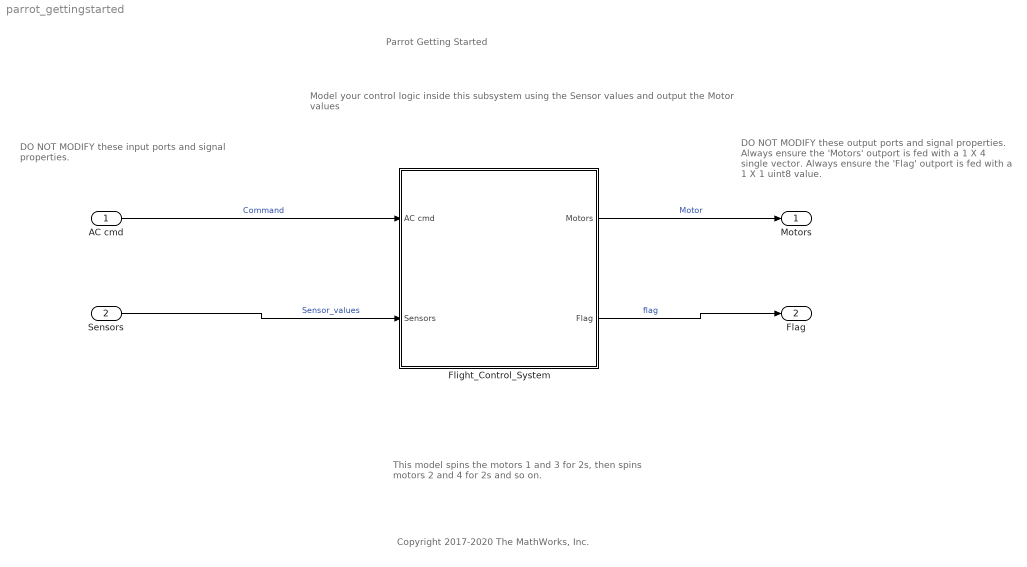
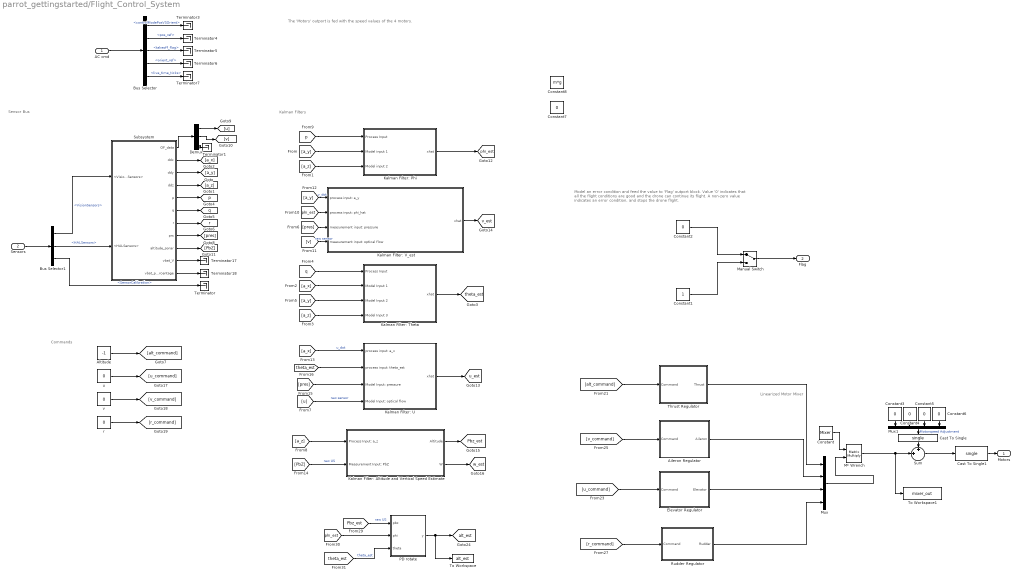
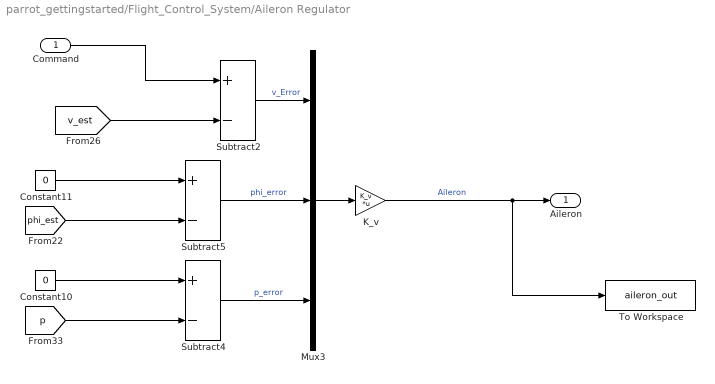
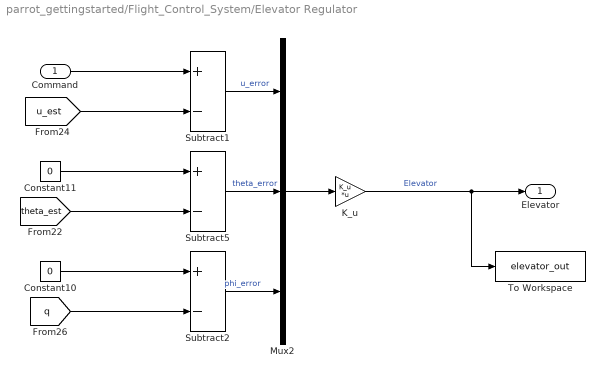
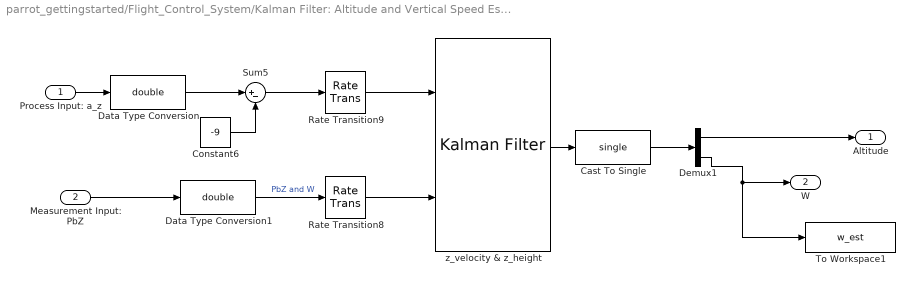
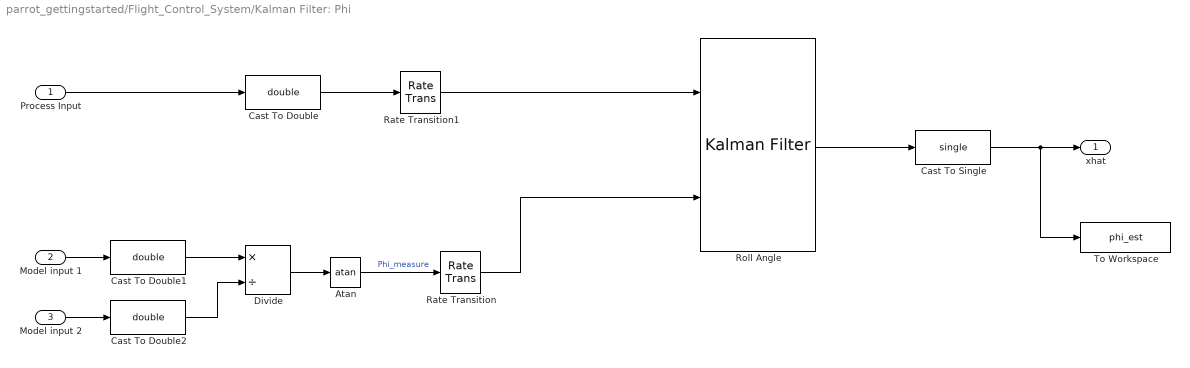
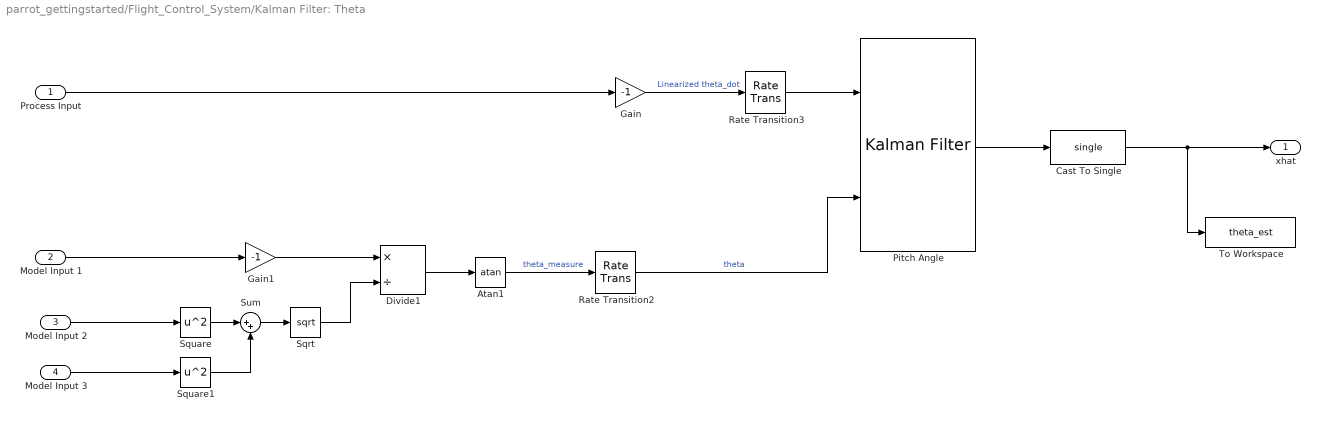
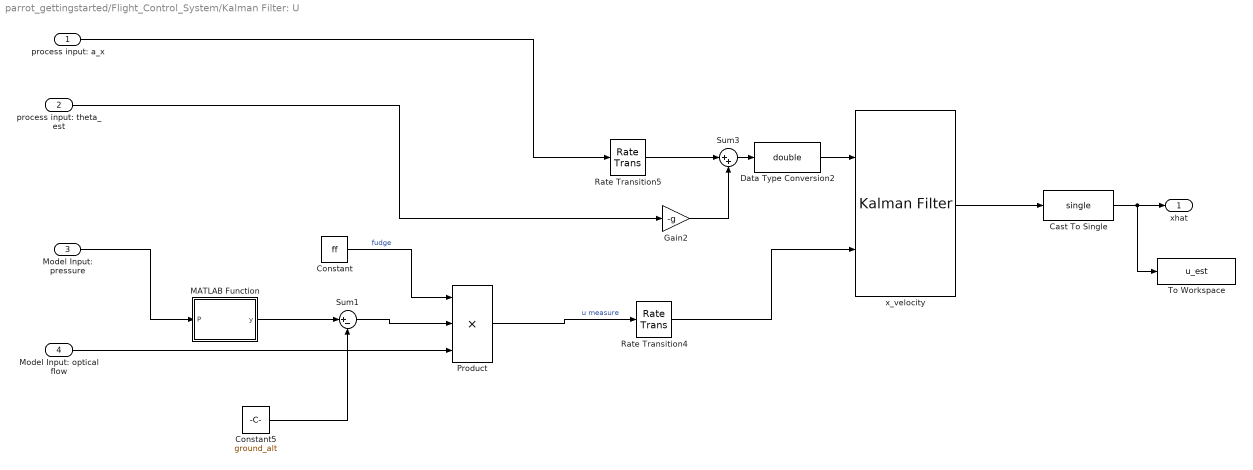
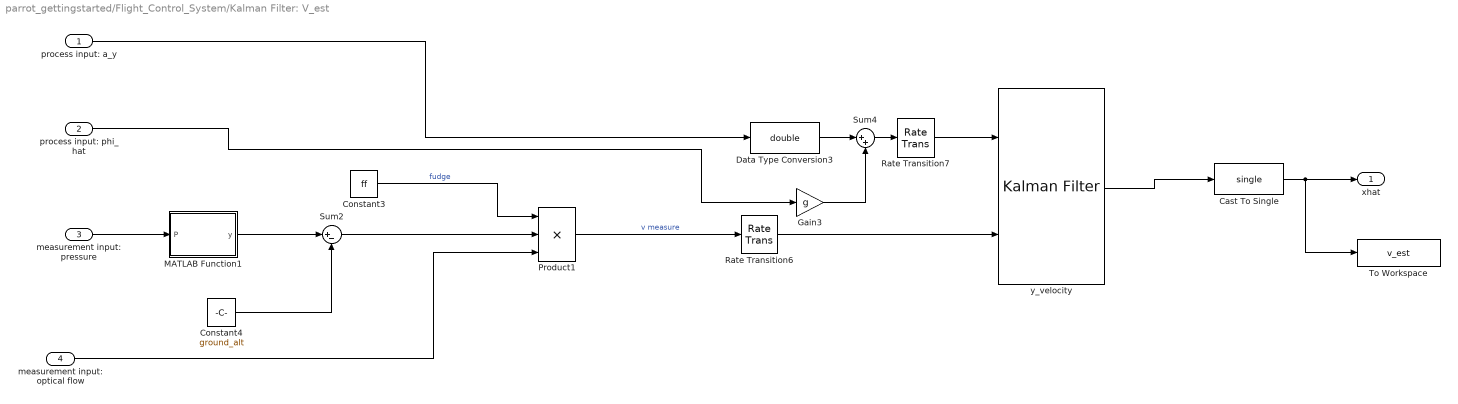
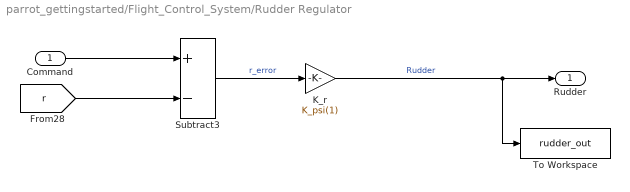
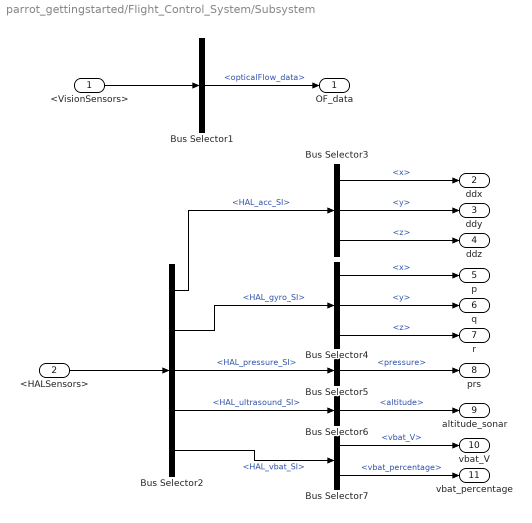
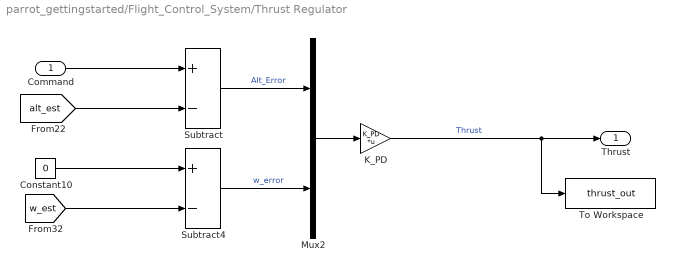
== matlab function parrot_gettingstarted/Flight_Control_System/Kalman Filter: U/MATLAB Function ==
function y = z_pres(P)
g = 9.8; % acceleration due to gravity m/s^2
M = 0.0289644; % molar mass of air in kg/mol
R = 8.31432; % universal gas constant Nm/mol/k
p0 = 101325; % Pa standard pressure

T =288.15;  % Assumed temperature in kelvin
K =-g*M/R/T;
z_hypsometric = 1/K*log(P/p0);
y = z_hypsometric;

== matlab function parrot_gettingstarted/Flight_Control_System/PD rotate ==
function y = rotate_BE(pbz, phi, theta)
roll_BE = [1 0 0; 0 cos(phi) sin(phi); 0 -sin(phi) cos(phi)]';
pitch_BE = [cos(theta) 0 -sin(theta); 0 1 0; sin(theta) 0 cos(theta);]';
%yaw_BE = simplify(inv([cos(psi) sin(psi) 0; -sin(psi) cos(psi) 0; 0 0 1;]));
rotater = roll_BE*pitch_BE*pbz;
y = rotater(3);

== matlab function parrot_gettingstarted/Flight_Control_System/Kalman Filter: V_est/MATLAB Function1 ==
function y = z_pres(P)
g = 9.8; % acceleration due to gravity m/s^2
M = 0.0289644; % molar mass of air in kg/mol
R = 8.31432; % universal gas constant Nm/mol/k
p0 = 101325; % Pa standard pressure

T =288.15;  % Assumed temperature in kelvin
K =-g*M/R/T;
z_hypsometric = 1/K*log(P/p0);
y = z_hypsometric;

/*
 * parrot_gettingstarted.c
 *
 * Academic License - for use in teaching, academic research, and meeting
 * course requirements at degree granting institutions only.  Not for
 * government, commercial, or other organizational use.
 *
 * Code generation for model "parrot_gettingstarted".
 *
 * Model version              : 4.0
 * Simulink Coder version : 9.7 (R2022a) 13-Nov-2021
 * C source code generated on : Tue May  3 11:22:44 2022
 *
 * Target selection: ert.tlc
 * Note: GRT includes extra infrastructure and instrumentation for prototyping
 * Embedded hardware selection: ARM Compatible->ARM 9
 * Code generation objectives: Unspecified
 * Validation result: Not run
 */

#include "parrot_gettingstarted.h"
#include "rtwtypes.h"
#include "parrot_gettingstarted_private.h"
#include <math.h>
#include "parrot_gettingstarted_types.h"
#include <string.h>
#include "rt_nonfinite.h"

/* Exported block signals */
CommandBus cmd_inport;                 /* '<Root>/AC cmd' */
SensorsBus sensor_inport;              /* '<Root>/Sensors' */
real32_T motors_outport[4];            /* '<S1>/Cast To Single1' */
uint8_T flag_outport;                  /* '<S1>/Manual Switch' */

/* Block signals (default storage) */
B_parrot_gettingstarted_T parrot_gettingstarted_B;

/* Block states (default storage) */
DW_parrot_gettingstarted_T parrot_gettingstarted_DW;

/* External outputs (root outports fed by signals with default storage) */
ExtY_parrot_gettingstarted_T parrot_gettingstarted_Y;

/* Real-time model */
static RT_MODEL_parrot_gettingstarte_T parrot_gettingstarted_M_;
RT_MODEL_parrot_gettingstarte_T *const parrot_gettingstarted_M =
  &parrot_gettingstarted_M_;

/*
 * System initialize for enable system:
 *    '<S89>/MeasurementUpdate'
 *    '<S200>/MeasurementUpdate'
 *    '<S256>/MeasurementUpdate'
 */
void parrot_g_MeasurementUpdate_Init(B_MeasurementUpdate_parrot_ge_T *localB,
  P_MeasurementUpdate_parrot_ge_T *localP)
{
  /* SystemInitialize for Product: '<S120>/Product3' incorporates:
   *  Outport: '<S120>/L*(y[k]-yhat[k|k-1])'
   */
  localB->Product3 = localP->Lykyhatkk1_Y0;
}

/*
 * Disable for enable system:
 *    '<S89>/MeasurementUpdate'
 *    '<S200>/MeasurementUpdate'
 *    '<S256>/MeasurementUpdate'
 */
void parro_MeasurementUpdate_Disable(B_MeasurementUpdate_parrot_ge_T *localB,
  DW_MeasurementUpdate_parrot_g_T *localDW, P_MeasurementUpdate_parrot_ge_T
  *localP)
{
  /* Disable for Product: '<S120>/Product3' incorporates:
   *  Outport: '<S120>/L*(y[k]-yhat[k|k-1])'
   */
  localB->Product3 = localP->Lykyhatkk1_Y0;
  localDW->MeasurementUpdate_MODE = false;
}

/*
 * Start for enable system:
 *    '<S89>/MeasurementUpdate'
 *    '<S200>/MeasurementUpdate'
 *    '<S256>/MeasurementUpdate'
 */
void parrot__MeasurementUpdate_Start(DW_MeasurementUpdate_parrot_g_T *localDW)
{
  localDW->MeasurementUpdate_MODE = false;
}

/*
 * Output and update for enable system:
 *    '<S89>/MeasurementUpdate'
 *    '<S200>/MeasurementUpdate'
 *    '<S256>/MeasurementUpdate'
 */
void parrot_gettin_MeasurementUpdate(boolean_T rtu_Enable, real_T rtu_Lk, real_T
  rtu_yk, real_T rtu_Ck, real_T rtu_xhatkk1, real_T rtu_Dk, real_T rtu_uk,
  B_MeasurementUpdate_parrot_ge_T *localB, DW_MeasurementUpdate_parrot_g_T
  *localDW, P_MeasurementUpdate_parrot_ge_T *localP)
{
  /* Outputs for Enabled SubSystem: '<S89>/MeasurementUpdate' incorporates:
   *  EnablePort: '<S120>/Enable'
   */
  if (rtu_Enable) {
    localDW->MeasurementUpdate_MODE = true;

    /* Product: '<S120>/Product3' incorporates:
     *  Product: '<S120>/C[k]*xhat[k|k-1]'
     *  Product: '<S120>/D[k]*u[k]'
     *  Sum: '<S120>/Add1'
     *  Sum: '<S120>/Sum'
     */
    localB->Product3 = (rtu_yk - (rtu_Ck * rtu_xhatkk1 + rtu_Dk * rtu_uk)) *
      rtu_Lk;
  } else if (localDW->MeasurementUpdate_MODE) {
    parro_MeasurementUpdate_Disable(localB, localDW, localP);
  }

  /* End of Outputs for SubSystem: '<S89>/MeasurementUpdate' */
}

/*
 * System initialize for enable system:
 *    '<S96>/Enabled Subsystem'
 *    '<S207>/Enabled Subsystem'
 *    '<S263>/Enabled Subsystem'
 */
void parrot_ge_EnabledSubsystem_Init(B_EnabledSubsystem_parrot_get_T *localB,
  P_EnabledSubsystem_parrot_get_T *localP)
{
  /* SystemInitialize for Product: '<S122>/Product2' incorporates:
   *  Outport: '<S122>/deltax'
   */
  localB->Product2 = localP->deltax_Y0;
}

/*
 * Disable for enable system:
 *    '<S96>/Enabled Subsystem'
 *    '<S207>/Enabled Subsystem'
 *    '<S263>/Enabled Subsystem'
 */
void parrot_EnabledSubsystem_Disable(B_EnabledSubsystem_parrot_get_T *localB,
  DW_EnabledSubsystem_parrot_ge_T *localDW, P_EnabledSubsystem_parrot_get_T
  *localP)
{
  /* Disable for Product: '<S122>/Product2' incorporates:
   *  Outport: '<S122>/deltax'
   */
  localB->Product2 = localP->deltax_Y0;
  localDW->EnabledSubsystem_MODE = false;
}

/*
 * Start for enable system:
 *    '<S96>/Enabled Subsystem'
 *    '<S207>/Enabled Subsystem'
 *    '<S263>/Enabled Subsystem'
 */
void parrot_g_EnabledSubsystem_Start(DW_EnabledSubsystem_parrot_ge_T *localDW)
{
  localDW->EnabledSubsystem_MODE = false;
}

/*
 * Output and update for enable system:
 *    '<S96>/Enabled Subsystem'
 *    '<S207>/Enabled Subsystem'
 *    '<S263>/Enabled Subsystem'
 */
void parrot_getting_EnabledSubsystem(boolean_T rtu_Enable, real_T rtu_Mk, real_T
  rtu_Ck, real_T rtu_yk, real_T rtu_xhatkk1, B_EnabledSubsystem_parrot_get_T
  *localB, DW_EnabledSubsystem_parrot_ge_T *localDW,
  P_EnabledSubsystem_parrot_get_T *localP)
{
  /* Outputs for Enabled SubSystem: '<S96>/Enabled Subsystem' incorporates:
   *  EnablePort: '<S122>/Enable'
   */
  if (rtu_Enable) {
    localDW->EnabledSubsystem_MODE = true;

    /* Product: '<S122>/Product2' incorporates:
     *  Product: '<S122>/Product'
     *  Sum: '<S122>/Add1'
     */
    localB->Product2 = (rtu_yk - rtu_Ck * rtu_xhatkk1) * rtu_Mk;
  } else if (localDW->EnabledSubsystem_MODE) {
    parrot_EnabledSubsystem_Disable(localB, localDW, localP);
  }

  /* End of Outputs for SubSystem: '<S96>/Enabled Subsystem' */
}

/*
 * Output and update for atomic system:
 *    '<S7>/MATLAB Function'
 *    '<S8>/MATLAB Function1'
 */
void parrot_gettingst_MATLABFunction(real32_T rtu_P,
  B_MATLABFunction_parrot_getti_T *localB)
{
  /* MATLAB Function 'Flight_Control_System/Kalman Filter: U/MATLAB Function': '<S178>:1' */
  /* '<S178>:1:9' */
  localB->y = (real32_T)log(rtu_P / 101325.0F) * -8440.23926F;

  /* '<S178>:1:10' */
}

/* Model step function */
void parrot_gettingstarted_step(void)
{
  real_T rtb_Sum4;
  real_T rtb_r_error;
  int32_T aoffset;
  int32_T coffset;
  int32_T i;
  int32_T j;
  real32_T rtb_Add_b;
  real32_T rtb_CastToSingle_e;
  real32_T rtb_CastToSingle_k;
  real32_T rtb_CastToSingle_lx;
  real32_T rtb_Linearizedtheta_dot;
  real32_T rtb_theta_measure;
  real32_T rtb_y;

  /* Product: '<S1>/M* Wrench' incorporates:
   *  Constant: '<S1>/Constant'
   *  Constant: '<S1>/Constant7'
   *  Constant: '<S1>/Constant8'
   */
  for (j = 0; j < 4; j++) {
    parrot_gettingstarted_B.TmpSignalConversionAtToWork[j] =
      ((parrot_gettingstarted_P.Mixer[j + 4] *
        parrot_gettingstarted_P.Constant7_Value +
        parrot_gettingstarted_P.Mixer[j] *
        parrot_gettingstarted_P.Constant8_Value) +
       parrot_gettingstarted_P.Mixer[j + 8] *
       parrot_gettingstarted_P.Constant7_Value) +
      parrot_gettingstarted_P.Mixer[j + 12] *
      parrot_gettingstarted_P.Constant7_Value;
  }

  /* End of Product: '<S1>/M* Wrench' */

  /* DataTypeConversion: '<S1>/Cast To Single1' incorporates:
   *  Constant: '<S1>/Constant3'
   *  Constant: '<S1>/Constant4'
   *  Constant: '<S1>/Constant5'
   *  Constant: '<S1>/Constant6'
   *  DataTypeConversion: '<S1>/Cast To Single'
   *  Sum: '<S1>/Sum'
   */
  motors_outport[0] = (real32_T)((real32_T)
    parrot_gettingstarted_P.Constant3_Value +
    parrot_gettingstarted_B.TmpSignalConversionAtToWork[0]);
  motors_outport[1] = (real32_T)((real32_T)
    parrot_gettingstarted_P.Constant4_Value +
    parrot_gettingstarted_B.TmpSignalConversionAtToWork[1]);
  motors_outport[2] = (real32_T)((real32_T)
    parrot_gettingstarted_P.Constant5_Value +
    parrot_gettingstarted_B.TmpSignalConversionAtToWork[2]);
  motors_outport[3] = (real32_T)((real32_T)
    parrot_gettingstarted_P.Constant6_Value +
    parrot_gettingstarted_B.TmpSignalConversionAtToWork[3]);

  /* Outport: '<Root>/Motors' incorporates:
   *  DataTypeConversion: '<S1>/Cast To Single1'
   */
  parrot_gettingstarted_Y.Motors[0] = motors_outport[0];
  parrot_gettingstarted_Y.Motors[1] = motors_outport[1];
  parrot_gettingstarted_Y.Motors[2] = motors_outport[2];
  parrot_gettingstarted_Y.Motors[3] = motors_outport[3];

  /* ManualSwitch: '<S1>/Manual Switch' */
  if (parrot_gettingstarted_P.ManualSwitch_CurrentSetting == 1) {
    /* ManualSwitch: '<S1>/Manual Switch' incorporates:
     *  Constant: '<S1>/Constant2'
     */
    flag_outport = parrot_gettingstarted_P.Constant2_Value;
  } else {
    /* ManualSwitch: '<S1>/Manual Switch' incorporates:
     *  Constant: '<S1>/Constant1'
     */
    flag_outport = parrot_gettingstarted_P.Constant1_Value;
  }

  /* End of ManualSwitch: '<S1>/Manual Switch' */

  /* Outport: '<Root>/Flag' */
  parrot_gettingstarted_Y.Flag = flag_outport;

  /* ToWorkspace: '<S1>/To Workspace1' */
  {
    double locTime = parrot_gettingstarted_M->Timing.taskTime0
      ;
    rt_UpdateStructLogVar((StructLogVar *)
                          parrot_gettingstarted_DW.ToWorkspace1_PWORK.LoggedData,
                          &locTime,
                          &parrot_gettingstarted_B.TmpSignalConversionAtToWork[0]);
  }

  /* Delay: '<S13>/MemoryX' incorporates:
   *  Constant: '<S13>/X0'
   */
  if (parrot_gettingstarted_DW.icLoad) {
    parrot_gettingstarted_DW.MemoryX_DSTATE[0] =
      parrot_gettingstarted_P.X0_Value[0];
    parrot_gettingstarted_DW.MemoryX_DSTATE[1] =
      parrot_gettingstarted_P.X0_Value[1];
  }

  /* Outputs for Enabled SubSystem: '<S41>/Enabled Subsystem' incorporates:
   *  EnablePort: '<S67>/Enable'
   */
  /* Constant: '<S13>/Enable' */
  if (parrot_gettingstarted_P.Enable_Value) {
    parrot_gettingstarted_DW.EnabledSubsystem_MODE_d = true;

    /* Sum: '<S67>/Add1' incorporates:
     *  Constant: '<S13>/C'
     *  DataTypeConversion: '<S4>/Data Type Conversion1'
     *  Delay: '<S13>/MemoryX'
     *  Inport: '<Root>/Sensors'
     *  Product: '<S67>/Product'
     */
    rtb_r_error = sensor_inport.HALSensors.HAL_ultrasound_SI.altitude -
      (parrot_gettingstarted_P.C_Value[0] *
       parrot_gettingstarted_DW.MemoryX_DSTATE[0] +
       parrot_gettingstarted_P.C_Value[1] *
       parrot_gettingstarted_DW.MemoryX_DSTATE[1]);

    /* Product: '<S67>/Product2' incorporates:
     *  Constant: '<S14>/KalmanGainM'
     *  DataTypeConversion: '<S58>/Conversion'
     */
    parrot_gettingstarted_B.Product2[0] =
      parrot_gettingstarted_P.KalmanGainM_Value_d[0] * rtb_r_error;
    parrot_gettingstarted_B.Product2[1] =
      parrot_gettingstarted_P.KalmanGainM_Value_d[1] * rtb_r_error;
  } else if (parrot_gettingstarted_DW.EnabledSubsystem_MODE_d) {
    /* Disable for Product: '<S67>/Product2' incorporates:
     *  Outport: '<S67>/deltax'
     */
    parrot_gettingstarted_B.Product2[0] = parrot_gettingstarted_P.deltax_Y0;
    parrot_gettingstarted_B.Product2[1] = parrot_gettingstarted_P.deltax_Y0;
    parrot_gettingstarted_DW.EnabledSubsystem_MODE_d = false;
  }

  /* End of Outputs for SubSystem: '<S41>/Enabled Subsystem' */

  /* DataTypeConversion: '<S4>/Cast To Single' incorporates:
   *  Delay: '<S13>/MemoryX'
   *  Sum: '<S41>/Add'
   */
  parrot_gettingstarted_B.CastToSingle[0] = (real32_T)
    (parrot_gettingstarted_B.Product2[0] +
     parrot_gettingstarted_DW.MemoryX_DSTATE[0]);
  parrot_gettingstarted_B.CastToSingle[1] = (real32_T)
    (parrot_gettingstarted_B.Product2[1] +
     parrot_gettingstarted_DW.MemoryX_DSTATE[1]);

  /* DataTypeConversion: '<S5>/Cast To Double2' incorporates:
   *  Inport: '<Root>/Sensors'
   */
  rtb_r_error = sensor_inport.HALSensors.HAL_acc_SI.z;

  /* Trigonometry: '<S5>/Atan' incorporates:
   *  DataTypeConversion: '<S5>/Cast To Double1'
   *  Inport: '<Root>/Sensors'
   *  Product: '<S5>/Divide'
   */
  parrot_gettingstarted_B.Phi_measure = atan
    (sensor_inport.HALSensors.HAL_acc_SI.y / rtb_r_error);

  /* Delay: '<S68>/MemoryX' incorporates:
   *  Constant: '<S68>/X0'
   */
  if (parrot_gettingstarted_DW.icLoad_g) {
    parrot_gettingstarted_DW.MemoryX_DSTATE_n =
      parrot_gettingstarted_P.X0_Value_l;
  }

  /* Outputs for Enabled SubSystem: '<S96>/Enabled Subsystem' */
  /* Constant: '<S68>/Enable' incorporates:
   *  Constant: '<S68>/C'
   *  Constant: '<S69>/KalmanGainM'
   *  Delay: '<S68>/MemoryX'
   */
  parrot_getting_EnabledSubsystem(parrot_gettingstarted_P.Enable_Value_k,
    parrot_gettingstarted_P.KalmanGainM_Value, parrot_gettingstarted_P.C_Value_m,
    parrot_gettingstarted_B.Phi_measure,
    parrot_gettingstarted_DW.MemoryX_DSTATE_n,
    &parrot_gettingstarted_B.EnabledSubsystem_o,
    &parrot_gettingstarted_DW.EnabledSubsystem_o,
    &parrot_gettingstarted_P.EnabledSubsystem_o);

  /* End of Outputs for SubSystem: '<S96>/Enabled Subsystem' */

  /* Sum: '<S96>/Add' incorporates:
   *  Delay: '<S68>/MemoryX'
   */
  rtb_r_error = parrot_gettingstarted_B.EnabledSubsystem_o.Product2 +
    parrot_gettingstarted_DW.MemoryX_DSTATE_n;

  /* DataTypeConversion: '<S5>/Cast To Single' */
  rtb_CastToSingle_e = (real32_T)rtb_r_error;

  /* Math: '<S6>/Square' incorporates:
   *  Inport: '<Root>/Sensors'
   */
  rtb_CastToSingle_lx = sensor_inport.HALSensors.HAL_acc_SI.y *
    sensor_inport.HALSensors.HAL_acc_SI.y;

  /* Math: '<S6>/Square1' incorporates:
   *  Inport: '<Root>/Sensors'
   */
  rtb_CastToSingle_k = sensor_inport.HALSensors.HAL_acc_SI.z *
    sensor_inport.HALSensors.HAL_acc_SI.z;

  /* Trigonometry: '<S6>/Atan1' incorporates:
   *  Gain: '<S6>/Gain1'
   *  Inport: '<Root>/Sensors'
   *  Product: '<S6>/Divide1'
   *  Sqrt: '<S6>/Sqrt'
   *  Sum: '<S6>/Sum'
   */
  rtb_theta_measure = (real32_T)atan(parrot_gettingstarted_P.Gain1_Gain *
    sensor_inport.HALSensors.HAL_acc_SI.x / (real32_T)sqrt(rtb_CastToSingle_lx +
    rtb_CastToSingle_k));

  /* Delay: '<S123>/MemoryX' incorporates:
   *  Constant: '<S123>/X0'
   */
  if (parrot_gettingstarted_DW.icLoad_o) {
    parrot_gettingstarted_DW.MemoryX_DSTATE_c =
      parrot_gettingstarted_P.X0_Value_i;
  }

  /* Outputs for Enabled SubSystem: '<S151>/Enabled Subsystem' incorporates:
   *  EnablePort: '<S177>/Enable'
   */
  /* Constant: '<S123>/Enable' */
  if (parrot_gettingstarted_P.Enable_Value_j) {
    parrot_gettingstarted_DW.EnabledSubsystem_MODE = true;

    /* Product: '<S177>/Product' incorporates:
     *  Constant: '<S123>/C'
     *  Delay: '<S123>/MemoryX'
     */
    rtb_CastToSingle_k = parrot_gettingstarted_P.C_Value_c *
      parrot_gettingstarted_DW.MemoryX_DSTATE_c;

    /* Product: '<S177>/Product2' incorporates:
     *  Constant: '<S124>/KalmanGainM'
     *  DataTypeConversion: '<S168>/Conversion'
     *  Sum: '<S177>/Add1'
     */
    parrot_gettingstarted_B.Product2_c = (rtb_theta_measure - rtb_CastToSingle_k)
      * (real32_T)parrot_gettingstarted_P.KalmanGainM_Value_h;
  } else if (parrot_gettingstarted_DW.EnabledSubsystem_MODE) {
    /* Disable for Product: '<S177>/Product2' incorporates:
     *  Outport: '<S177>/deltax'
     */
    parrot_gettingstarted_B.Product2_c = parrot_gettingstarted_P.deltax_Y0_k;
    parrot_gettingstarted_DW.EnabledSubsystem_MODE = false;
  }

  /* End of Outputs for SubSystem: '<S151>/Enabled Subsystem' */

  /* Sum: '<S151>/Add' incorporates:
   *  Delay: '<S123>/MemoryX'
   */
  rtb_Add_b = parrot_gettingstarted_B.Product2_c +
    parrot_gettingstarted_DW.MemoryX_DSTATE_c;

  /* MATLAB Function: '<S1>/PD rotate' */
  /* MATLAB Function 'Flight_Control_System/PD rotate': '<S9>:1' */
  rtb_CastToSingle_lx = (real32_T)sin(rtb_CastToSingle_e);
  rtb_CastToSingle_k = (real32_T)cos(rtb_CastToSingle_e);
  parrot_gettingstarted_B.A[1] = 0.0F;
  parrot_gettingstarted_B.A[4] = rtb_CastToSingle_k;
  parrot_gettingstarted_B.A[7] = rtb_CastToSingle_lx;
  parrot_gettingstarted_B.A[2] = 0.0F;
  parrot_gettingstarted_B.A[5] = -rtb_CastToSingle_lx;
  parrot_gettingstarted_B.A[8] = rtb_CastToSingle_k;
  rtb_CastToSingle_lx = (real32_T)sin(rtb_Add_b);
  rtb_CastToSingle_k = (real32_T)cos(rtb_Add_b);
  parrot_gettingstarted_B.B[0] = rtb_CastToSingle_k;
  parrot_gettingstarted_B.B[3] = 0.0F;
  parrot_gettingstarted_B.B[6] = -rtb_CastToSingle_lx;
  parrot_gettingstarted_B.A[0] = 1.0F;
  parrot_gettingstarted_B.B[1] = 0.0F;
  parrot_gettingstarted_B.A[3] = 0.0F;
  parrot_gettingstarted_B.B[4] = 1.0F;
  parrot_gettingstarted_B.A[6] = 0.0F;
  parrot_gettingstarted_B.B[7] = 0.0F;
  parrot_gettingstarted_B.B[2] = rtb_CastToSingle_lx;
  parrot_gettingstarted_B.B[5] = 0.0F;
  parrot_gettingstarted_B.B[8] = rtb_CastToSingle_k;

  /* '<S9>:1:5' */
  for (j = 0; j < 3; j++) {
    coffset = j * 3;
    for (i = 0; i < 3; i++) {
      aoffset = i * 3;
      rtb_CastToSingle_lx = parrot_gettingstarted_B.A[aoffset] *
        parrot_gettingstarted_B.B[j];
      parrot_gettingstarted_B.y[coffset + i] =
        (parrot_gettingstarted_B.A[aoffset + 1] * parrot_gettingstarted_B.B[j +
         3] + rtb_CastToSingle_lx) + parrot_gettingstarted_B.A[aoffset + 2] *
        parrot_gettingstarted_B.B[j + 6];
    }
  }

  /* '<S9>:1:6' */
  rtb_y = parrot_gettingstarted_B.CastToSingle[0] * parrot_gettingstarted_B.y[2];

  /* End of MATLAB Function: '<S1>/PD rotate' */

  /* ToWorkspace: '<S1>/To Workspace' */
  {
    double locTime = parrot_gettingstarted_M->Timing.taskTime0
      ;
    rt_UpdateStructLogVar((StructLogVar *)
                          parrot_gettingstarted_DW.ToWorkspace_PWORK.LoggedData,
                          &locTime, &rtb_y);
  }

  /* ToWorkspace: '<S4>/To Workspace1' */
  {
    double locTime = parrot_gettingstarted_M->Timing.taskTime0
      ;
    rt_UpdateStructLogVar((StructLogVar *)
                          parrot_gettingstarted_DW.ToWorkspace1_PWORK_h.LoggedData,
                          &locTime, &parrot_gettingstarted_B.CastToSingle[1]);
  }

  /* DataTypeConversion: '<S4>/Data Type Conversion' incorporates:
   *  DataTypeConversion: '<S5>/Cast To Double2'
   *  Inport: '<Root>/Sensors'
   */
  rtb_r_error = sensor_inport.HALSensors.HAL_acc_SI.z;

  /* Sum: '<S4>/Sum5' incorporates:
   *  Constant: '<S4>/Constant6'
   */
  parrot_gettingstarted_B.Sum5 = rtb_r_error -
    parrot_gettingstarted_P.Constant6_Value_k;

  /* Outputs for Enabled SubSystem: '<S34>/MeasurementUpdate' incorporates:
   *  EnablePort: '<S65>/Enable'
   */
  /* Constant: '<S13>/Enable' */
  /* MATLAB Function 'Kalman Filter/CovarianceOutputConfigurator/decideOutput/SqrtUsedFcn': '<S64>:1' */
  if (parrot_gettingstarted_P.Enable_Value) {
    parrot_gettingstarted_DW.MeasurementUpdate_MODE_j = true;

    /* Sum: '<S65>/Sum' incorporates:
     *  Constant: '<S13>/C'
     *  Constant: '<S13>/D'
     *  DataTypeConversion: '<S4>/Data Type Conversion1'
     *  Delay: '<S13>/MemoryX'
     *  Inport: '<Root>/Sensors'
     *  Product: '<S65>/C[k]*xhat[k|k-1]'
     *  Product: '<S65>/D[k]*u[k]'
     *  Sum: '<S65>/Add1'
     */
    rtb_r_error = sensor_inport.HALSensors.HAL_ultrasound_SI.altitude -
      ((parrot_gettingstarted_P.C_Value[0] *
        parrot_gettingstarted_DW.MemoryX_DSTATE[0] +
        parrot_gettingstarted_P.C_Value[1] *
        parrot_gettingstarted_DW.MemoryX_DSTATE[1]) +
       parrot_gettingstarted_P.D_Value * parrot_gettingstarted_B.Sum5);

    /* Product: '<S65>/Product3' incorporates:
     *  Constant: '<S14>/KalmanGainL'
     */
    parrot_gettingstarted_B.Product3[0] =
      parrot_gettingstarted_P.KalmanGainL_Value[0] * rtb_r_error;
    parrot_gettingstarted_B.Product3[1] =
      parrot_gettingstarted_P.KalmanGainL_Value[1] * rtb_r_error;
  } else if (parrot_gettingstarted_DW.MeasurementUpdate_MODE_j) {
    /* Disable for Product: '<S65>/Product3' incorporates:
     *  Outport: '<S65>/L*(y[k]-yhat[k|k-1])'
     */
    parrot_gettingstarted_B.Product3[0] = parrot_gettingstarted_P.Lykyhatkk1_Y0;
    parrot_gettingstarted_B.Product3[1] = parrot_gettingstarted_P.Lykyhatkk1_Y0;
    parrot_gettingstarted_DW.MeasurementUpdate_MODE_j = false;
  }

  /* End of Outputs for SubSystem: '<S34>/MeasurementUpdate' */

  /* ToWorkspace: '<S5>/To Workspace' */
  {
    double locTime = parrot_gettingstarted_M->Timing.taskTime0
      ;
    rt_UpdateStructLogVar((StructLogVar *)
                          parrot_gettingstarted_DW.ToWorkspace_PWORK_a.LoggedData,
                          &locTime, &rtb_CastToSingle_e);
  }

  /* Product: '<S89>/A[k]*xhat[k|k-1]' incorporates:
   *  Constant: '<S68>/A'
   *  Delay: '<S68>/MemoryX'
   */
  rtb_r_error = parrot_gettingstarted_P.A_Value_c *
    parrot_gettingstarted_DW.MemoryX_DSTATE_n;

  /* Outputs for Enabled SubSystem: '<S89>/MeasurementUpdate' */
  /* Constant: '<S68>/Enable' incorporates:
   *  Constant: '<S68>/C'
   *  Constant: '<S68>/D'
   *  Constant: '<S69>/KalmanGainL'
   *  DataTypeConversion: '<S5>/Cast To Double'
   *  Delay: '<S68>/MemoryX'
   *  Inport: '<Root>/Sensors'
   */
  parrot_gettin_MeasurementUpdate(parrot_gettingstarted_P.Enable_Value_k,
    parrot_gettingstarted_P.KalmanGainL_Value_l,
    parrot_gettingstarted_B.Phi_measure, parrot_gettingstarted_P.C_Value_m,
    parrot_gettingstarted_DW.MemoryX_DSTATE_n, parrot_gettingstarted_P.D_Value_e,
    (real_T)sensor_inport.HALSensors.HAL_gyro_SI.x,
    &parrot_gettingstarted_B.MeasurementUpdate_h,
    &parrot_gettingstarted_DW.MeasurementUpdate_h,
    &parrot_gettingstarted_P.MeasurementUpdate_h);

  /* End of Outputs for SubSystem: '<S89>/MeasurementUpdate' */

  /* Update for Delay: '<S68>/MemoryX' incorporates:
   *  Constant: '<S68>/B'
   *  DataTypeConversion: '<S5>/Cast To Double'
   *  Inport: '<Root>/Sensors'
   *  Product: '<S89>/B[k]*u[k]'
   *  Sum: '<S89>/Add'
   */
  parrot_gettingstarted_DW.MemoryX_DSTATE_n = (parrot_gettingstarted_P.B_Value_i
    * sensor_inport.HALSensors.HAL_gyro_SI.x + rtb_r_error) +
    parrot_gettingstarted_B.MeasurementUpdate_h.Product3;

  /* ToWorkspace: '<S6>/To Workspace' */
  {
    double locTime = parrot_gettingstarted_M->Timing.taskTime0
      ;
    rt_UpdateStructLogVar((StructLogVar *)
                          parrot_gettingstarted_DW.ToWorkspace_PWORK_c.LoggedData,
                          &locTime, &rtb_Add_b);
  }

  /* Gain: '<S6>/Gain' incorporates:
   *  Inport: '<Root>/Sensors'
   */
  rtb_Linearizedtheta_dot = parrot_gettingstarted_P.Gain_Gain *
    sensor_inport.HALSensors.HAL_gyro_SI.y;

  /* Product: '<S144>/A[k]*xhat[k|k-1]' incorporates:
   *  Constant: '<S123>/A'
   *  Delay: '<S123>/MemoryX'
   */
  /* MATLAB Function 'Kalman Filter/CovarianceOutputConfigurator/decideOutput/SqrtUsedFcn': '<S174>:1' */
  rtb_CastToSingle_k = parrot_gettingstarted_P.A_Value_k *
    parrot_gettingstarted_DW.MemoryX_DSTATE_c;

  /* Product: '<S144>/B[k]*u[k]' incorporates:
   *  Constant: '<S123>/B'
   */
  rtb_CastToSingle_lx = parrot_gettingstarted_P.B_Value_n *
    rtb_Linearizedtheta_dot;

  /* Outputs for Enabled SubSystem: '<S144>/MeasurementUpdate' incorporates:
   *  EnablePort: '<S175>/Enable'
   */
  /* Constant: '<S123>/Enable' */
  if (parrot_gettingstarted_P.Enable_Value_j) {
    parrot_gettingstarted_DW.MeasurementUpdate_MODE = true;

    /* Product: '<S175>/Product3' incorporates:
     *  Constant: '<S123>/C'
     *  Constant: '<S123>/D'
     *  Constant: '<S124>/KalmanGainL'
     *  DataTypeConversion: '<S167>/Conversion'
     *  Delay: '<S123>/MemoryX'
     *  Product: '<S175>/C[k]*xhat[k|k-1]'
     *  Product: '<S175>/D[k]*u[k]'
     *  Sum: '<S175>/Add1'
     *  Sum: '<S175>/Sum'
     */
    parrot_gettingstarted_B.Product3_o = (rtb_theta_measure -
      (parrot_gettingstarted_P.C_Value_c *
       parrot_gettingstarted_DW.MemoryX_DSTATE_c +
       parrot_gettingstarted_P.D_Value_o * rtb_Linearizedtheta_dot)) * (real32_T)
      parrot_gettingstarted_P.KalmanGainL_Value_a;
  } else if (parrot_gettingstarted_DW.MeasurementUpdate_MODE) {
    /* Disable for Product: '<S175>/Product3' incorporates:
     *  Outport: '<S175>/L*(y[k]-yhat[k|k-1])'
     */
    parrot_gettingstarted_B.Product3_o = parrot_gettingstarted_P.Lykyhatkk1_Y0_f;
    parrot_gettingstarted_DW.MeasurementUpdate_MODE = false;
  }

  /* End of Outputs for SubSystem: '<S144>/MeasurementUpdate' */

  /* Update for Delay: '<S123>/MemoryX' incorporates:
   *  Sum: '<S144>/Add'
   */
  parrot_gettingstarted_DW.MemoryX_DSTATE_c = (rtb_CastToSingle_lx +
    rtb_CastToSingle_k) + parrot_gettingstarted_B.Product3_o;

  /* MATLAB Function: '<S7>/MATLAB Function' incorporates:
   *  Inport: '<Root>/Sensors'
   */
  parrot_gettingst_MATLABFunction
    (sensor_inport.HALSensors.HAL_pressure_SI.pressure,
     &parrot_gettingstarted_B.sf_MATLABFunction);

  /* Sum: '<S7>/Sum1' incorporates:
   *  Constant: '<S7>/Constant5'
   */
  rtb_r_error = parrot_gettingstarted_B.sf_MATLABFunction.y -
    parrot_gettingstarted_P.ground_alt;

  /* Product: '<S7>/Product' incorporates:
   *  Constant: '<S7>/Constant'
   *  Inport: '<Root>/Sensors'
   */
  parrot_gettingstarted_B.Phi_measure = parrot_gettingstarted_P.ff * rtb_r_error
    * sensor_inport.VisionSensors.opticalFlow_data[0];

  /* Delay: '<S179>/MemoryX' incorporates:
   *  Constant: '<S179>/X0'
   */
  if (parrot_gettingstarted_DW.icLoad_n) {
    parrot_gettingstarted_DW.MemoryX_DSTATE_m =
      parrot_gettingstarted_P.X0_Value_b;
  }

  /* Outputs for Enabled SubSystem: '<S207>/Enabled Subsystem' */
  /* Constant: '<S179>/Enable' incorporates:
   *  Constant: '<S179>/C'
   *  Constant: '<S180>/KalmanGainM'
   *  DataTypeConversion: '<S224>/Conversion'
   *  Delay: '<S179>/MemoryX'
   */
  parrot_getting_EnabledSubsystem(parrot_gettingstarted_P.Enable_Value_p,
    (real_T)parrot_gettingstarted_P.KalmanGainM_Value_dq,
    parrot_gettingstarted_P.C_Value_k, parrot_gettingstarted_B.Phi_measure,
    parrot_gettingstarted_DW.MemoryX_DSTATE_m,
    &parrot_gettingstarted_B.EnabledSubsystem_d,
    &parrot_gettingstarted_DW.EnabledSubsystem_d,
    &parrot_gettingstarted_P.EnabledSubsystem_d);

  /* End of Outputs for SubSystem: '<S207>/Enabled Subsystem' */

  /* Sum: '<S207>/Add' incorporates:
   *  Delay: '<S179>/MemoryX'
   */
  rtb_r_error = parrot_gettingstarted_B.EnabledSubsystem_d.Product2 +
    parrot_gettingstarted_DW.MemoryX_DSTATE_m;

  /* DataTypeConversion: '<S7>/Cast To Single' */
  rtb_CastToSingle_k = (real32_T)rtb_r_error;

  /* ToWorkspace: '<S7>/To Workspace' */
  {
    double locTime = parrot_gettingstarted_M->Timing.taskTime0
      ;
    rt_UpdateStructLogVar((StructLogVar *)
                          parrot_gettingstarted_DW.ToWorkspace_PWORK_j.LoggedData,
                          &locTime, &rtb_CastToSingle_k);
  }

  /* Gain: '<S7>/Gain2' */
  rtb_CastToSingle_lx = parrot_gettingstarted_P.Gain2_Gain * rtb_Add_b;

  /* Product: '<S200>/A[k]*xhat[k|k-1]' incorporates:
   *  Constant: '<S179>/A'
   *  Delay: '<S179>/MemoryX'
   */
  /* MATLAB Function 'Kalman Filter/CovarianceOutputConfigurator/decideOutput/SqrtUsedFcn': '<S230>:1' */
  rtb_r_error = parrot_gettingstarted_P.A_Value_p *
    parrot_gettingstarted_DW.MemoryX_DSTATE_m;

  /* Outputs for Enabled SubSystem: '<S200>/MeasurementUpdate' */
  /* Constant: '<S179>/Enable' incorporates:
   *  Constant: '<S179>/C'
   *  Constant: '<S179>/D'
   *  Constant: '<S180>/KalmanGainL'
   *  DataTypeConversion: '<S7>/Data Type Conversion2'
   *  Delay: '<S179>/MemoryX'
   *  Inport: '<Root>/Sensors'
   *  Sum: '<S7>/Sum3'
   */
  parrot_gettin_MeasurementUpdate(parrot_gettingstarted_P.Enable_Value_p,
    parrot_gettingstarted_P.KalmanGainL_Value_h,
    parrot_gettingstarted_B.Phi_measure, parrot_gettingstarted_P.C_Value_k,
    parrot_gettingstarted_DW.MemoryX_DSTATE_m, parrot_gettingstarted_P.D_Value_l,
    (real_T)(sensor_inport.HALSensors.HAL_acc_SI.x + rtb_CastToSingle_lx),
    &parrot_gettingstarted_B.MeasurementUpdate_d,
    &parrot_gettingstarted_DW.MeasurementUpdate_d,
    &parrot_gettingstarted_P.MeasurementUpdate_d);

  /* End of Outputs for SubSystem: '<S200>/MeasurementUpdate' */

  /* Update for Delay: '<S179>/MemoryX' incorporates:
   *  Constant: '<S179>/B'
   *  DataTypeConversion: '<S7>/Data Type Conversion2'
   *  Inport: '<Root>/Sensors'
   *  Product: '<S200>/B[k]*u[k]'
   *  Sum: '<S200>/Add'
   *  Sum: '<S7>/Sum3'
   */
  parrot_gettingstarted_DW.MemoryX_DSTATE_m =
    ((sensor_inport.HALSensors.HAL_acc_SI.x + rtb_CastToSingle_lx) *
     parrot_gettingstarted_P.B_Value_a + rtb_r_error) +
    parrot_gettingstarted_B.MeasurementUpdate_d.Product3;

  /* MATLAB Function: '<S8>/MATLAB Function1' incorporates:
   *  Inport: '<Root>/Sensors'
   */
  parrot_gettingst_MATLABFunction
    (sensor_inport.HALSensors.HAL_pressure_SI.pressure,
     &parrot_gettingstarted_B.sf_MATLABFunction1);

  /* Sum: '<S8>/Sum2' incorporates:
   *  Constant: '<S8>/Constant4'
   */
  rtb_r_error = parrot_gettingstarted_B.sf_MATLABFunction1.y -
    parrot_gettingstarted_P.ground_alt;

  /* Product: '<S8>/Product1' incorporates:
   *  Constant: '<S8>/Constant3'
   *  Inport: '<Root>/Sensors'
   */
  parrot_gettingstarted_B.Phi_measure = parrot_gettingstarted_P.ff * rtb_r_error
    * sensor_inport.VisionSensors.opticalFlow_data[1];

  /* Delay: '<S235>/MemoryX' incorporates:
   *  Constant: '<S235>/X0'
   */
  if (parrot_gettingstarted_DW.icLoad_k) {
    parrot_gettingstarted_DW.MemoryX_DSTATE_i =
      parrot_gettingstarted_P.X0_Value_g;
  }

  /* Outputs for Enabled SubSystem: '<S263>/Enabled Subsystem' */
  /* Constant: '<S235>/Enable' incorporates:
   *  Constant: '<S235>/C'
   *  Constant: '<S236>/KalmanGainM'
   *  Delay: '<S235>/MemoryX'
   */
  parrot_getting_EnabledSubsystem(parrot_gettingstarted_P.Enable_Value_i,
    parrot_gettingstarted_P.KalmanGainM_Value_n,
    parrot_gettingstarted_P.C_Value_a, parrot_gettingstarted_B.Phi_measure,
    parrot_gettingstarted_DW.MemoryX_DSTATE_i,
    &parrot_gettingstarted_B.EnabledSubsystem_j,
    &parrot_gettingstarted_DW.EnabledSubsystem_j,
    &parrot_gettingstarted_P.EnabledSubsystem_j);

  /* End of Outputs for SubSystem: '<S263>/Enabled Subsystem' */

  /* Sum: '<S263>/Add' incorporates:
   *  Delay: '<S235>/MemoryX'
   */
  rtb_r_error = parrot_gettingstarted_B.EnabledSubsystem_j.Product2 +
    parrot_gettingstarted_DW.MemoryX_DSTATE_i;

  /* DataTypeConversion: '<S8>/Cast To Single' */
  rtb_CastToSingle_lx = (real32_T)rtb_r_error;

  /* ToWorkspace: '<S8>/To Workspace' */
  {
    double locTime = parrot_gettingstarted_M->Timing.taskTime0
      ;
    rt_UpdateStructLogVar((StructLogVar *)
                          parrot_gettingstarted_DW.ToWorkspace_PWORK_d.LoggedData,
                          &locTime, &rtb_CastToSingle_lx);
  }

  /* DataTypeConversion: '<S8>/Data Type Conversion3' incorporates:
   *  Inport: '<Root>/Sensors'
   */
  rtb_r_error = sensor_inport.HALSensors.HAL_acc_SI.y;

  /* Sum: '<S8>/Sum4' incorporates:
   *  Gain: '<S8>/Gain3'
   */
  rtb_Sum4 = parrot_gettingstarted_P.Gain3_Gain * rtb_CastToSingle_e +
    rtb_r_error;

  /* Product: '<S256>/A[k]*xhat[k|k-1]' incorporates:
   *  Constant: '<S235>/A'
   *  Delay: '<S235>/MemoryX'
   */
  rtb_r_error = parrot_gettingstarted_P.A_Value_a *
    parrot_gettingstarted_DW.MemoryX_DSTATE_i;

  /* Outputs for Enabled SubSystem: '<S256>/MeasurementUpdate' */
  /* Constant: '<S235>/Enable' incorporates:
   *  Constant: '<S235>/C'
   *  Constant: '<S235>/D'
   *  Constant: '<S236>/KalmanGainL'
   *  Delay: '<S235>/MemoryX'
   */
  parrot_gettin_MeasurementUpdate(parrot_gettingstarted_P.Enable_Value_i,
    parrot_gettingstarted_P.KalmanGainL_Value_f,
    parrot_gettingstarted_B.Phi_measure, parrot_gettingstarted_P.C_Value_a,
    parrot_gettingstarted_DW.MemoryX_DSTATE_i, parrot_gettingstarted_P.D_Value_b,
    rtb_Sum4, &parrot_gettingstarted_B.MeasurementUpdate_b,
    &parrot_gettingstarted_DW.MeasurementUpdate_b,
    &parrot_gettingstarted_P.MeasurementUpdate_b);

  /* End of Outputs for SubSystem: '<S256>/MeasurementUpdate' */

  /* Update for Delay: '<S235>/MemoryX' incorporates:
   *  Constant: '<S235>/B'
   *  Product: '<S256>/B[k]*u[k]'
   *  Sum: '<S256>/Add'
   */
  parrot_gettingstarted_DW.MemoryX_DSTATE_i =
    (parrot_gettingstarted_P.B_Value_it * rtb_Sum4 + rtb_r_error) +
    parrot_gettingstarted_B.MeasurementUpdate_b.Product3;

  /* Sum: '<S12>/Subtract4' incorporates:
   *  Constant: '<S12>/Constant10'
   */
  rtb_r_error = parrot_gettingstarted_P.Constant10_Value -
    parrot_gettingstarted_B.CastToSingle[1];

  /* Gain: '<S12>/K_PD' incorporates:
   *  Constant: '<S1>/Altitude'
   *  SignalConversion generated from: '<S12>/K_PD'
   *  Sum: '<S12>/Subtract'
   */
  rtb_r_error = (parrot_gettingstarted_P.Altitude_Value - rtb_y) *
    parrot_gettingstarted_P.K_PD[0] + parrot_gettingstarted_P.K_PD[1] *
    rtb_r_error;

  /* SignalConversion generated from: '<S1>/To Workspace2' incorporates:
   *  Constant: '<S1>/r'
   *  Constant: '<S1>/u'
   *  Constant: '<S1>/v'
   *  Constant: '<S2>/Constant10'
   *  Constant: '<S2>/Constant11'
   *  Constant: '<S3>/Constant10'
   *  Constant: '<S3>/Constant11'
   *  Gain: '<S10>/K_r'
   *  Gain: '<S2>/K_v'
   *  Gain: '<S3>/K_u'
   *  Inport: '<Root>/Sensors'
   *  Sum: '<S10>/Subtract3'
   *  Sum: '<S2>/Subtract2'
   *  Sum: '<S2>/Subtract4'
   *  Sum: '<S2>/Subtract5'
   *  Sum: '<S3>/Subtract1'
   *  Sum: '<S3>/Subtract2'
   *  Sum: '<S3>/Subtract5'
   */
  parrot_gettingstarted_B.TmpSignalConversionAtToWork[0] = rtb_r_error;
  parrot_gettingstarted_B.TmpSignalConversionAtToWork[1] =
    ((parrot_gettingstarted_P.v_Value - rtb_CastToSingle_lx) *
     parrot_gettingstarted_P.K_v[0] + (parrot_gettingstarted_P.Constant11_Value
      - rtb_CastToSingle_e) * parrot_gettingstarted_P.K_v[1]) +
    (parrot_gettingstarted_P.Constant10_Value_j -
     sensor_inport.HALSensors.HAL_gyro_SI.x) * parrot_gettingstarted_P.K_v[2];
  parrot_gettingstarted_B.TmpSignalConversionAtToWork[2] =
    ((parrot_gettingstarted_P.u_Value - rtb_CastToSingle_k) *
     parrot_gettingstarted_P.K_u[0] +
     (parrot_gettingstarted_P.Constant11_Value_p - rtb_Add_b) *
     parrot_gettingstarted_P.K_u[1]) +
    (parrot_gettingstarted_P.Constant10_Value_c -
     sensor_inport.HALSensors.HAL_gyro_SI.y) * parrot_gettingstarted_P.K_u[2];
  parrot_gettingstarted_B.TmpSignalConversionAtToWork[3] =
    (parrot_gettingstarted_P.r_Value - sensor_inport.HALSensors.HAL_gyro_SI.z) *
    parrot_gettingstarted_P.K_psi[0];

  /* ToWorkspace: '<S1>/To Workspace2' */
  {
    double locTime = parrot_gettingstarted_M->Timing.taskTime0
      ;
    rt_UpdateStructLogVar((StructLogVar *)
                          parrot_gettingstarted_DW.ToWorkspace2_PWORK.LoggedData,
                          &locTime,
                          &parrot_gettingstarted_B.TmpSignalConversionAtToWork[0]);
  }

  /* ToWorkspace: '<S12>/To Workspace' */
  {
    double locTime = parrot_gettingstarted_M->Timing.taskTime0
      ;
    rt_UpdateStructLogVar((StructLogVar *)
                          parrot_gettingstarted_DW.ToWorkspace_PWORK_h.LoggedData,
                          &locTime, &rtb_r_error);
  }

  /* Update for Delay: '<S13>/MemoryX' */
  parrot_gettingstarted_DW.icLoad = false;

  /* Product: '<S34>/A[k]*xhat[k|k-1]' incorporates:
   *  Constant: '<S13>/A'
   *  Delay: '<S13>/MemoryX'
   */
  rtb_r_error = parrot_gettingstarted_P.A_Value[0] *
    parrot_gettingstarted_DW.MemoryX_DSTATE[0] +
    parrot_gettingstarted_DW.MemoryX_DSTATE[1] *
    parrot_gettingstarted_P.A_Value[2];
  parrot_gettingstarted_B.Phi_measure = parrot_gettingstarted_DW.MemoryX_DSTATE
    [0] * parrot_gettingstarted_P.A_Value[1] +
    parrot_gettingstarted_DW.MemoryX_DSTATE[1] *
    parrot_gettingstarted_P.A_Value[3];

  /* Update for Delay: '<S13>/MemoryX' incorporates:
   *  Constant: '<S13>/B'
   *  Product: '<S34>/B[k]*u[k]'
   *  Product: '<S65>/Product3'
   *  Sum: '<S34>/Add'
   */
  parrot_gettingstarted_DW.MemoryX_DSTATE[0] = (parrot_gettingstarted_P.B_Value
    [0] * parrot_gettingstarted_B.Sum5 + rtb_r_error) +
    parrot_gettingstarted_B.Product3[0];
  parrot_gettingstarted_DW.MemoryX_DSTATE[1] = (parrot_gettingstarted_P.B_Value
    [1] * parrot_gettingstarted_B.Sum5 + parrot_gettingstarted_B.Phi_measure) +
    parrot_gettingstarted_B.Product3[1];

  /* Update for Delay: '<S68>/MemoryX' */
  parrot_gettingstarted_DW.icLoad_g = false;

  /* Update for Delay: '<S123>/MemoryX' */
  parrot_gettingstarted_DW.icLoad_o = false;

  /* Update for Delay: '<S179>/MemoryX' */
  parrot_gettingstarted_DW.icLoad_n = false;

  /* Update for Delay: '<S235>/MemoryX' */
  parrot_gettingstarted_DW.icLoad_k = false;

  /* Matfile logging */
  rt_UpdateTXYLogVars(parrot_gettingstarted_M->rtwLogInfo,
                      (&parrot_gettingstarted_M->Timing.taskTime0));

  /* signal main to stop simulation */
  {                                    /* Sample time: [0.005s, 0.0s] */
    if ((rtmGetTFinal(parrot_gettingstarted_M)!=-1) &&
        !((rtmGetTFinal(parrot_gettingstarted_M)-
           parrot_gettingstarted_M->Timing.taskTime0) >
          parrot_gettingstarted_M->Timing.taskTime0 * (DBL_EPSILON))) {
      rtmSetErrorStatus(parrot_gettingstarted_M, "Simulation finished");
    }
  }

  /* Update absolute time for base rate */
  /* The "clockTick0" counts the number of times the code of this task has
   * been executed. The absolute time is the multiplication of "clockTick0"
   * and "Timing.stepSize0". Size of "clockTick0" ensures timer will not
   * overflow during the application lifespan selected.
   * Timer of this task consists of two 32 bit unsigned integers.
   * The two integers represent the low bits Timing.clockTick0 and the high bits
   * Timing.clockTickH0. When the low bit overflows to 0, the high bits increment.
   */
  if (!(++parrot_gettingstarted_M->Timing.clockTick0)) {
    ++parrot_gettingstarted_M->Timing.clockTickH0;
  }

  parrot_gettingstarted_M->Timing.taskTime0 =
    parrot_gettingstarted_M->Timing.clockTick0 *
    parrot_gettingstarted_M->Timing.stepSize0 +
    parrot_gettingstarted_M->Timing.clockTickH0 *
    parrot_gettingstarted_M->Timing.stepSize0 * 4294967296.0;
}
